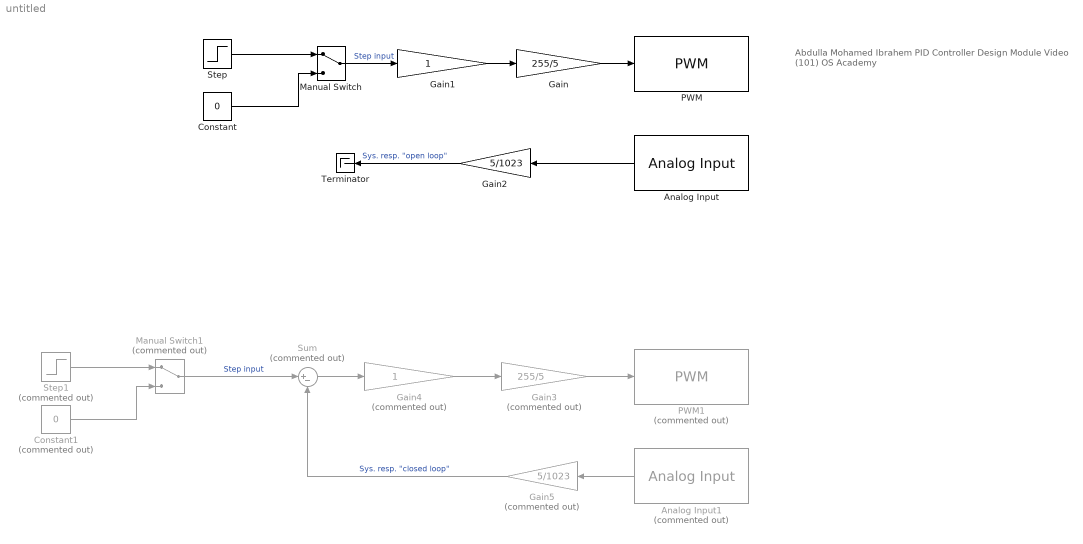
/*
 * File: untitled.c
 *
 * Code generated for Simulink model 'untitled'.
 *
 * Model version                  : 1.1
 * Simulink Coder version         : 24.2 (R2024b) 21-Jun-2024
 * C/C++ source code generated on : Sun Jun 29 09:48:37 2025
 *
 * Target selection: ert.tlc
 * Embedded hardware selection: Atmel->AVR
 * Code generation objectives: Unspecified
 * Validation result: Not run
 */

#include "untitled.h"
#include "rtwtypes.h"
#include "untitled_private.h"

/* Block signals (default storage) */
B_untitled_T untitled_B;

/* Block states (default storage) */
DW_untitled_T untitled_DW;

/* Real-time model */
static RT_MODEL_untitled_T untitled_M_;
RT_MODEL_untitled_T *const untitled_M = &untitled_M_;

/* Model step function */
void untitled_step(void)
{
  real_T u0;
  uint16_T b_varargout_1;

  /* MATLABSystem: '<Root>/Analog Input' */
  untitled_DW.obj.AnalogInDriverObj.MW_ANALOGIN_HANDLE = MW_AnalogIn_GetHandle
    (15UL);
  MW_AnalogInSingle_ReadResult
    (untitled_DW.obj.AnalogInDriverObj.MW_ANALOGIN_HANDLE, &b_varargout_1,
     MW_ANALOGIN_UINT16);

  /* Gain: '<Root>/Gain2' incorporates:
   *  MATLABSystem: '<Root>/Analog Input'
   * */
  untitled_B.Sysrespopenloop = (uint32_T)untitled_P.Gain2_Gain * b_varargout_1;

  /* ManualSwitch: '<Root>/Manual Switch' */
  if (untitled_P.ManualSwitch_CurrentSetting == 1) {
    /* Step: '<Root>/Step' */
    if (untitled_M->Timing.t[0] < untitled_P.Step_Time) {
      /* ManualSwitch: '<Root>/Manual Switch' */
      untitled_B.Stepinput = untitled_P.Step_Y0;
    } else {
      /* ManualSwitch: '<Root>/Manual Switch' */
      untitled_B.Stepinput = untitled_P.Step_YFinal;
    }

    /* End of Step: '<Root>/Step' */
  } else {
    /* ManualSwitch: '<Root>/Manual Switch' incorporates:
     *  Constant: '<Root>/Constant'
     */
    untitled_B.Stepinput = untitled_P.Constant_Value;
  }

  /* End of ManualSwitch: '<Root>/Manual Switch' */

  /* MATLABSystem: '<Root>/PWM' */
  untitled_DW.obj_j.PWMDriverObj.MW_PWM_HANDLE = MW_PWM_GetHandle(5UL);

  /* Gain: '<Root>/Gain' incorporates:
   *  Gain: '<Root>/Gain1'
   */
  u0 = untitled_P.Gain1_Gain * untitled_B.Stepinput * untitled_P.Gain_Gain;

  /* Start for MATLABSystem: '<Root>/PWM' */
  if (!(u0 <= 255.0)) {
    u0 = 255.0;
  }

  if (!(u0 >= 0.0)) {
    u0 = 0.0;
  }

  /* MATLABSystem: '<Root>/PWM' */
  MW_PWM_SetDutyCycle(untitled_DW.obj_j.PWMDriverObj.MW_PWM_HANDLE, u0);

  {                                    /* Sample time: [0.001s, 0.0s] */
    extmodeErrorCode_T errorCode = EXTMODE_SUCCESS;
    extmodeSimulationTime_T extmodeTime = (extmodeSimulationTime_T)
      ((untitled_M->Timing.clockTick1 * 1) + 0);

    /* Trigger External Mode event */
    errorCode = extmodeEvent(1, extmodeTime);
    if (errorCode != EXTMODE_SUCCESS) {
      /* Code to handle External Mode event errors
         may be added here */
    }
  }

  /* Update absolute time for base rate */
  /* The "clockTick0" counts the number of times the code of this task has
   * been executed. The absolute time is the multiplication of "clockTick0"
   * and "Timing.stepSize0". Size of "clockTick0" ensures timer will not
   * overflow during the application lifespan selected.
   */
  untitled_M->Timing.t[0] =
    ((time_T)(++untitled_M->Timing.clockTick0)) * untitled_M->Timing.stepSize0;

  {
    /* Update absolute timer for sample time: [0.001s, 0.0s] */
    /* The "clockTick1" counts the number of times the code of this task has
     * been executed. The resolution of this integer timer is 0.001, which is the step size
     * of the task. Size of "clockTick1" ensures timer will not overflow during the
     * application lifespan selected.
     */
    untitled_M->Timing.clockTick1++;
  }
}
